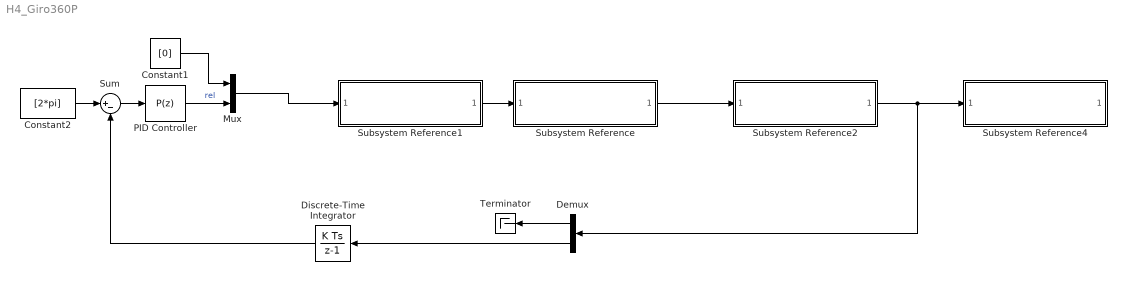
/*
 * Academic License - for use in teaching, academic research, and meeting
 * course requirements at degree granting institutions only.  Not for
 * government, commercial, or other organizational use.
 *
 * File: H4_Giro360P.c
 *
 * Code generated for Simulink model 'H4_Giro360P'.
 *
 * Model version                  : 1.25
 * Simulink Coder version         : 23.2 (R2023b) 01-Aug-2023
 * C/C++ source code generated on : Thu Dec 21 15:55:48 2023
 *
 * Target selection: ert.tlc
 * Embedded hardware selection: Atmel->AVR
 * Code generation objectives: Unspecified
 * Validation result: Not run
 */

#include "H4_Giro360P.h"
#include <math.h>
#include "rt_nonfinite.h"
#include "rtwtypes.h"
#include "H4_Giro360P_private.h"

/* Block signals (default storage) */
B_H4_Giro360P_T H4_Giro360P_B;

/* Block states (default storage) */
DW_H4_Giro360P_T H4_Giro360P_DW;

/* Real-time model */
static RT_MODEL_H4_Giro360P_T H4_Giro360P_M_;
RT_MODEL_H4_Giro360P_T *const H4_Giro360P_M = &H4_Giro360P_M_;

/* Model step function */
void H4_Giro360P_step(void)
{
  real_T Diff;
  real_T Gain;
  real_T Gain_tmp;
  real_T rtb_TSamp_idx_0;
  real_T tmp;
  int16_T rtb_DataTypeConversion_idx_0;
  int16_T rtb_DataTypeConversion_idx_1;
  int16_T y;

  /* Gain: '<S42>/Proportional Gain' incorporates:
   *  Constant: '<Root>/Constant2'
   *  DiscreteIntegrator: '<Root>/Discrete-Time Integrator'
   *  Sum: '<Root>/Sum'
   */
  rtb_TSamp_idx_0 = (H4_Giro360P_P.Constant2_Value -
                     H4_Giro360P_DW.DiscreteTimeIntegrator_DSTATE) *
    H4_Giro360P_P.PIDController_P;

  /* Saturate: '<S44>/Saturation' */
  if (rtb_TSamp_idx_0 > H4_Giro360P_P.PIDController_UpperSaturationLi) {
    rtb_TSamp_idx_0 = H4_Giro360P_P.PIDController_UpperSaturationLi;
  } else if (rtb_TSamp_idx_0 < H4_Giro360P_P.PIDController_LowerSaturationLi) {
    rtb_TSamp_idx_0 = H4_Giro360P_P.PIDController_LowerSaturationLi;
  }

  /* Product: '<S3>/Matrix Multiply' incorporates:
   *  Constant: '<Root>/Constant1'
   *  Constant: '<S3>/Constant'
   *  Saturate: '<S44>/Saturation'
   */
  H4_Giro360P_B.MatrixMultiply[0] = H4_Giro360P_P.Constant_Value[0] *
    H4_Giro360P_P.Constant1_Value + H4_Giro360P_P.Constant_Value[2] *
    rtb_TSamp_idx_0;
  H4_Giro360P_B.MatrixMultiply[1] = H4_Giro360P_P.Constant_Value[1] *
    H4_Giro360P_P.Constant1_Value + H4_Giro360P_P.Constant_Value[3] *
    rtb_TSamp_idx_0;

  /* Memory: '<S2>/Memory' */
  rtb_TSamp_idx_0 = H4_Giro360P_DW.Memory_PreviousInput[0];
  H4_Giro360P_B.Memory[0] = rtb_TSamp_idx_0;

  /* Sum: '<S2>/Sum' */
  H4_Giro360P_B.error[0] = H4_Giro360P_B.MatrixMultiply[0] - rtb_TSamp_idx_0;

  /* Memory: '<S2>/Memory' */
  rtb_TSamp_idx_0 = H4_Giro360P_DW.Memory_PreviousInput[1];
  H4_Giro360P_B.Memory[1] = rtb_TSamp_idx_0;

  /* Sum: '<S2>/Sum' */
  H4_Giro360P_B.error[1] = H4_Giro360P_B.MatrixMultiply[1] - rtb_TSamp_idx_0;

  /* Sum: '<S146>/Sum' incorporates:
   *  DiscreteIntegrator: '<S137>/Integrator'
   *  Gain: '<S142>/Proportional Gain'
   */
  H4_Giro360P_B.Saturation = H4_Giro360P_P.PIDController2_P *
    H4_Giro360P_B.error[0] + H4_Giro360P_DW.Integrator_DSTATE;

  /* Saturate: '<S144>/Saturation' */
  if (H4_Giro360P_B.Saturation > H4_Giro360P_P.PIDController2_UpperSaturationL)
  {
    /* Sum: '<S146>/Sum' incorporates:
     *  Saturate: '<S144>/Saturation'
     */
    H4_Giro360P_B.Saturation = H4_Giro360P_P.PIDController2_UpperSaturationL;
  } else if (H4_Giro360P_B.Saturation <
             H4_Giro360P_P.PIDController2_LowerSaturationL) {
    /* Sum: '<S146>/Sum' incorporates:
     *  Saturate: '<S144>/Saturation'
     */
    H4_Giro360P_B.Saturation = H4_Giro360P_P.PIDController2_LowerSaturationL;
  }

  /* End of Saturate: '<S144>/Saturation' */

  /* Sum: '<S98>/Sum' incorporates:
   *  DiscreteIntegrator: '<S89>/Integrator'
   *  Gain: '<S94>/Proportional Gain'
   */
  H4_Giro360P_B.Saturation_e = H4_Giro360P_P.PIDController1_P *
    H4_Giro360P_B.error[1] + H4_Giro360P_DW.Integrator_DSTATE_h;

  /* Saturate: '<S96>/Saturation' */
  if (H4_Giro360P_B.Saturation_e > H4_Giro360P_P.PIDController1_UpperSaturationL)
  {
    /* Sum: '<S98>/Sum' incorporates:
     *  Saturate: '<S96>/Saturation'
     */
    H4_Giro360P_B.Saturation_e = H4_Giro360P_P.PIDController1_UpperSaturationL;
  } else if (H4_Giro360P_B.Saturation_e <
             H4_Giro360P_P.PIDController1_LowerSaturationL) {
    /* Sum: '<S98>/Sum' incorporates:
     *  Saturate: '<S96>/Saturation'
     */
    H4_Giro360P_B.Saturation_e = H4_Giro360P_P.PIDController1_LowerSaturationL;
  }

  /* End of Saturate: '<S96>/Saturation' */

  /* SignalConversion generated from: '<S2>/Subsystem Reference' */
  H4_Giro360P_B.pwm[0] = H4_Giro360P_B.Saturation;
  H4_Giro360P_B.pwm[1] = H4_Giro360P_B.Saturation_e;

  /* DataTypeConversion: '<S55>/Data Type Conversion' */
  Gain_tmp = floor(H4_Giro360P_B.pwm[0]);
  if (rtIsNaN(Gain_tmp) || rtIsInf(Gain_tmp)) {
    Gain_tmp = 0.0;
  } else {
    Gain_tmp = fmod(Gain_tmp, 65536.0);
  }

  rtb_DataTypeConversion_idx_0 = Gain_tmp < 0.0 ? -(int16_T)(uint16_T)-Gain_tmp :
    (int16_T)(uint16_T)Gain_tmp;
  Gain_tmp = floor(H4_Giro360P_B.pwm[1]);
  if (rtIsNaN(Gain_tmp) || rtIsInf(Gain_tmp)) {
    Gain_tmp = 0.0;
  } else {
    Gain_tmp = fmod(Gain_tmp, 65536.0);
  }

  rtb_DataTypeConversion_idx_1 = Gain_tmp < 0.0 ? -(int16_T)(uint16_T)-Gain_tmp :
    (int16_T)(uint16_T)Gain_tmp;

  /* End of DataTypeConversion: '<S55>/Data Type Conversion' */

  /* MATLABSystem: '<S156>/Adelante_der' */
  H4_Giro360P_DW.obj_b.PWMDriverObj.MW_PWM_HANDLE = MW_PWM_GetHandle(12UL);

  /* Saturate: '<S156>/Saturation2' */
  if (rtb_DataTypeConversion_idx_1 > H4_Giro360P_P.Saturation2_UpperSat) {
    y = H4_Giro360P_P.Saturation2_UpperSat;
  } else if (rtb_DataTypeConversion_idx_1 < H4_Giro360P_P.Saturation2_LowerSat)
  {
    y = H4_Giro360P_P.Saturation2_LowerSat;
  } else {
    y = rtb_DataTypeConversion_idx_1;
  }

  /* End of Saturate: '<S156>/Saturation2' */

  /* Start for MATLABSystem: '<S156>/Adelante_der' */
  if (y > 255) {
    y = 255;
  }

  if (y < 0) {
    y = 0;
  }

  /* MATLABSystem: '<S156>/Adelante_der' */
  MW_PWM_SetDutyCycle(H4_Giro360P_DW.obj_b.PWMDriverObj.MW_PWM_HANDLE, (real_T)y);

  /* MATLABSystem: '<S156>/Adelante_izq' */
  H4_Giro360P_DW.obj_j.PWMDriverObj.MW_PWM_HANDLE = MW_PWM_GetHandle(9UL);

  /* Saturate: '<S156>/Saturation4' */
  if (rtb_DataTypeConversion_idx_0 > H4_Giro360P_P.Saturation4_UpperSat) {
    y = H4_Giro360P_P.Saturation4_UpperSat;
  } else if (rtb_DataTypeConversion_idx_0 < H4_Giro360P_P.Saturation4_LowerSat)
  {
    y = H4_Giro360P_P.Saturation4_LowerSat;
  } else {
    y = rtb_DataTypeConversion_idx_0;
  }

  /* End of Saturate: '<S156>/Saturation4' */

  /* Abs: '<S156>/Abs2' */
  if (y < 0) {
    y = -y;
  }

  /* End of Abs: '<S156>/Abs2' */

  /* Start for MATLABSystem: '<S156>/Adelante_izq' */
  if (y > 255) {
    y = 255;
  }

  if (y < 0) {
    y = 0;
  }

  /* MATLABSystem: '<S156>/Adelante_izq' */
  MW_PWM_SetDutyCycle(H4_Giro360P_DW.obj_j.PWMDriverObj.MW_PWM_HANDLE, (real_T)y);

  /* MATLABSystem: '<S156>/Atras_der' */
  H4_Giro360P_DW.obj_e.PWMDriverObj.MW_PWM_HANDLE = MW_PWM_GetHandle(11UL);

  /* Saturate: '<S156>/Saturation3' */
  if (rtb_DataTypeConversion_idx_1 > H4_Giro360P_P.Saturation3_UpperSat) {
    y = H4_Giro360P_P.Saturation3_UpperSat;
  } else if (rtb_DataTypeConversion_idx_1 < H4_Giro360P_P.Saturation3_LowerSat)
  {
    y = H4_Giro360P_P.Saturation3_LowerSat;
  } else {
    y = rtb_DataTypeConversion_idx_1;
  }

  /* End of Saturate: '<S156>/Saturation3' */

  /* Abs: '<S156>/Abs1' */
  if (y < 0) {
    y = -y;
  }

  /* End of Abs: '<S156>/Abs1' */

  /* Start for MATLABSystem: '<S156>/Atras_der' */
  if (y > 255) {
    y = 255;
  }

  if (y < 0) {
    y = 0;
  }

  /* MATLABSystem: '<S156>/Atras_der' */
  MW_PWM_SetDutyCycle(H4_Giro360P_DW.obj_e.PWMDriverObj.MW_PWM_HANDLE, (real_T)y);

  /* MATLABSystem: '<S156>/Atras_izq' */
  H4_Giro360P_DW.obj_g.PWMDriverObj.MW_PWM_HANDLE = MW_PWM_GetHandle(10UL);

  /* Saturate: '<S156>/Saturation5' */
  if (rtb_DataTypeConversion_idx_0 > H4_Giro360P_P.Saturation5_UpperSat) {
    y = H4_Giro360P_P.Saturation5_UpperSat;
  } else if (rtb_DataTypeConversion_idx_0 < H4_Giro360P_P.Saturation5_LowerSat)
  {
    y = H4_Giro360P_P.Saturation5_LowerSat;
  } else {
    y = rtb_DataTypeConversion_idx_0;
  }

  /* End of Saturate: '<S156>/Saturation5' */

  /* Start for MATLABSystem: '<S156>/Atras_izq' */
  if (y > 255) {
    y = 255;
  }

  if (y < 0) {
    y = 0;
  }

  /* MATLABSystem: '<S156>/Atras_izq' */
  MW_PWM_SetDutyCycle(H4_Giro360P_DW.obj_g.PWMDriverObj.MW_PWM_HANDLE, (real_T)y);

  /* MATLABSystem: '<S156>/Digital Output' incorporates:
   *  Constant: '<S158>/Constant'
   *  RelationalOperator: '<S158>/Compare'
   */
  writeDigitalPin(8, (uint8_T)(rtb_DataTypeConversion_idx_0 !=
    H4_Giro360P_P.Constant_Value_c));

  /* MATLABSystem: '<S156>/Digital Output1' incorporates:
   *  Constant: '<S159>/Constant'
   *  RelationalOperator: '<S159>/Compare'
   */
  writeDigitalPin(13, (uint8_T)(rtb_DataTypeConversion_idx_1 !=
    H4_Giro360P_P.Constant_Value_d));

  /* DiscreteIntegrator: '<S5>/Discrete-Time Integrator' */
  H4_Giro360P_B.DiscreteTimeIntegrator[0] =
    H4_Giro360P_DW.DiscreteTimeIntegrator_DSTATE_k[0];
  H4_Giro360P_B.DiscreteTimeIntegrator[1] =
    H4_Giro360P_DW.DiscreteTimeIntegrator_DSTATE_k[1];
  H4_Giro360P_B.DiscreteTimeIntegrator[2] =
    H4_Giro360P_DW.DiscreteTimeIntegrator_DSTATE_k[2];

  /* MATLABSystem: '<S155>/Encoder' */
  if (H4_Giro360P_DW.obj_p.SampleTime != H4_Giro360P_P.Encoder_SampleTime) {
    H4_Giro360P_DW.obj_p.SampleTime = H4_Giro360P_P.Encoder_SampleTime;
  }

  if (H4_Giro360P_DW.obj_p.TunablePropsChanged) {
    H4_Giro360P_DW.obj_p.TunablePropsChanged = false;
  }

  /* MATLABSystem: '<S155>/Encoder' */
  MW_EncoderRead(H4_Giro360P_DW.obj_p.Index, &H4_Giro360P_B.Encoder);

  /* MATLABSystem: '<S155>/Encoder1' */
  if (H4_Giro360P_DW.obj.SampleTime != H4_Giro360P_P.Encoder1_SampleTime) {
    H4_Giro360P_DW.obj.SampleTime = H4_Giro360P_P.Encoder1_SampleTime;
  }

  if (H4_Giro360P_DW.obj.TunablePropsChanged) {
    H4_Giro360P_DW.obj.TunablePropsChanged = false;
  }

  /* MATLABSystem: '<S155>/Encoder1' */
  MW_EncoderRead(H4_Giro360P_DW.obj.Index, &H4_Giro360P_B.Encoder1);

  /* SignalConversion generated from: '<S155>/Gain' */
  H4_Giro360P_B.TmpSignalConversionAtGainInport[0] = H4_Giro360P_B.Encoder;
  H4_Giro360P_B.TmpSignalConversionAtGainInport[1] = H4_Giro360P_B.Encoder1;

  /* Gain: '<S155>/Gain' */
  Gain_tmp = (real_T)H4_Giro360P_P.Gain_Gain * 1.1368683772161603E-13;

  /* Gain: '<S155>/Gain' */
  Gain = Gain_tmp * (real_T)H4_Giro360P_B.TmpSignalConversionAtGainInport[0];
  H4_Giro360P_B.Gain[0] = Gain;

  /* SampleTimeMath: '<S157>/TSamp'
   *
   * About '<S157>/TSamp':
   *  y = u * K where K = 1 / ( w * Ts )
   */
  Gain *= H4_Giro360P_P.TSamp_WtEt;
  rtb_TSamp_idx_0 = Gain;

  /* Sum: '<S157>/Diff' incorporates:
   *  UnitDelay: '<S157>/UD'
   *
   * Block description for '<S157>/Diff':
   *
   *  Add in CPU
   *
   * Block description for '<S157>/UD':
   *
   *  Store in Global RAM
   */
  Diff = Gain - H4_Giro360P_DW.UD_DSTATE[0];
  H4_Giro360P_B.Diff[0] = Diff;

  /* Gain: '<S154>/Gain1' */
  H4_Giro360P_B.Gain1[0] = H4_Giro360P_P.Gain1_Gain[0] * Diff;

  /* Gain: '<S155>/Gain' */
  Gain = Gain_tmp * (real_T)H4_Giro360P_B.TmpSignalConversionAtGainInport[1];
  H4_Giro360P_B.Gain[1] = Gain;

  /* SampleTimeMath: '<S157>/TSamp'
   *
   * About '<S157>/TSamp':
   *  y = u * K where K = 1 / ( w * Ts )
   */
  Gain *= H4_Giro360P_P.TSamp_WtEt;

  /* Sum: '<S157>/Diff' incorporates:
   *  UnitDelay: '<S157>/UD'
   *
   * Block description for '<S157>/Diff':
   *
   *  Add in CPU
   *
   * Block description for '<S157>/UD':
   *
   *  Store in Global RAM
   */
  Diff = Gain - H4_Giro360P_DW.UD_DSTATE[1];
  H4_Giro360P_B.Diff[1] = Diff;

  /* Gain: '<S154>/Gain1' */
  H4_Giro360P_B.Gain1[1] = H4_Giro360P_P.Gain1_Gain[1] * Diff;

  /* Product: '<S4>/Matrix Multiply' incorporates:
   *  Constant: '<S4>/Constant'
   */
  H4_Giro360P_B.MatrixMultiply_d[0] = H4_Giro360P_P.Constant_Value_b[0] *
    H4_Giro360P_B.Gain1[0] + H4_Giro360P_B.Gain1[1] *
    H4_Giro360P_P.Constant_Value_b[2];
  H4_Giro360P_B.MatrixMultiply_d[1] = H4_Giro360P_B.Gain1[0] *
    H4_Giro360P_P.Constant_Value_b[1] + H4_Giro360P_B.Gain1[1] *
    H4_Giro360P_P.Constant_Value_b[3];

  /* Update for DiscreteIntegrator: '<Root>/Discrete-Time Integrator' */
  H4_Giro360P_DW.DiscreteTimeIntegrator_DSTATE +=
    H4_Giro360P_P.DiscreteTimeIntegrator_gainval *
    H4_Giro360P_B.MatrixMultiply_d[1];

  /* Update for DiscreteIntegrator: '<S137>/Integrator' incorporates:
   *  Gain: '<S134>/Integral Gain'
   */
  H4_Giro360P_DW.Integrator_DSTATE += H4_Giro360P_P.PIDController2_I *
    H4_Giro360P_B.error[0] * H4_Giro360P_P.Integrator_gainval;

  /* Update for DiscreteIntegrator: '<S89>/Integrator' incorporates:
   *  Gain: '<S86>/Integral Gain'
   */
  H4_Giro360P_DW.Integrator_DSTATE_h += H4_Giro360P_P.PIDController1_I *
    H4_Giro360P_B.error[1] * H4_Giro360P_P.Integrator_gainval_d;

  /* Update for DiscreteIntegrator: '<S5>/Discrete-Time Integrator' incorporates:
   *  Product: '<S5>/Product'
   *  Product: '<S5>/Product1'
   *  Trigonometry: '<S5>/Cos'
   *  Trigonometry: '<S5>/Sin'
   */
  Gain_tmp = H4_Giro360P_DW.DiscreteTimeIntegrator_DSTATE_k[0];
  Diff = H4_Giro360P_DW.DiscreteTimeIntegrator_DSTATE_k[1];
  tmp = H4_Giro360P_DW.DiscreteTimeIntegrator_DSTATE_k[2];
  H4_Giro360P_DW.DiscreteTimeIntegrator_DSTATE_k[0] = cos
    (H4_Giro360P_B.DiscreteTimeIntegrator[2]) * H4_Giro360P_B.MatrixMultiply_d[0]
    * H4_Giro360P_P.DiscreteTimeIntegrator_gainva_b + Gain_tmp;
  H4_Giro360P_DW.DiscreteTimeIntegrator_DSTATE_k[1] =
    H4_Giro360P_B.MatrixMultiply_d[0] * sin
    (H4_Giro360P_B.DiscreteTimeIntegrator[2]) *
    H4_Giro360P_P.DiscreteTimeIntegrator_gainva_b + Diff;
  H4_Giro360P_DW.DiscreteTimeIntegrator_DSTATE_k[2] =
    H4_Giro360P_P.DiscreteTimeIntegrator_gainva_b *
    H4_Giro360P_B.MatrixMultiply_d[1] + tmp;

  /* Update for Memory: '<S2>/Memory' */
  H4_Giro360P_DW.Memory_PreviousInput[0] = H4_Giro360P_B.Gain1[0];

  /* Update for UnitDelay: '<S157>/UD'
   *
   * Block description for '<S157>/UD':
   *
   *  Store in Global RAM
   */
  H4_Giro360P_DW.UD_DSTATE[0] = rtb_TSamp_idx_0;

  /* Update for Memory: '<S2>/Memory' */
  H4_Giro360P_DW.Memory_PreviousInput[1] = H4_Giro360P_B.Gain1[1];

  /* Update for UnitDelay: '<S157>/UD' incorporates:
   *  SampleTimeMath: '<S157>/TSamp'
   *
   * About '<S157>/TSamp':
   *  y = u * K where K = 1 / ( w * Ts )
   *
   * Block description for '<S157>/UD':
   *
   *  Store in Global RAM
   */
  H4_Giro360P_DW.UD_DSTATE[1] = Gain;

  {                                    /* Sample time: [0.01s, 0.0s] */
  }

  /* Update absolute time for base rate */
  /* The "clockTick0" counts the number of times the code of this task has
   * been executed. The absolute time is the multiplication of "clockTick0"
   * and "Timing.stepSize0". Size of "clockTick0" ensures timer will not
   * overflow during the application lifespan selected.
   */
  H4_Giro360P_M->Timing.taskTime0 =
    ((time_T)(++H4_Giro360P_M->Timing.clockTick0)) *
    H4_Giro360P_M->Timing.stepSize0;
}
